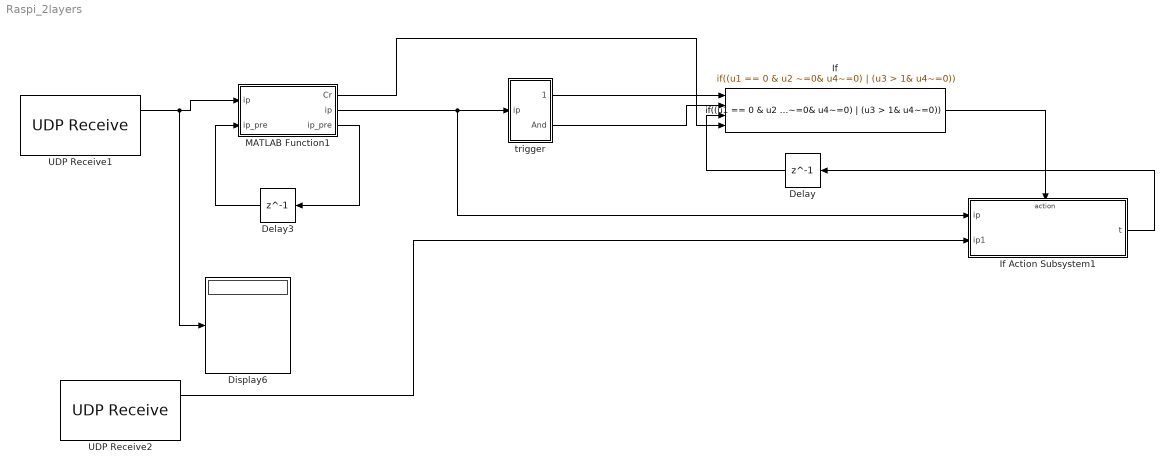
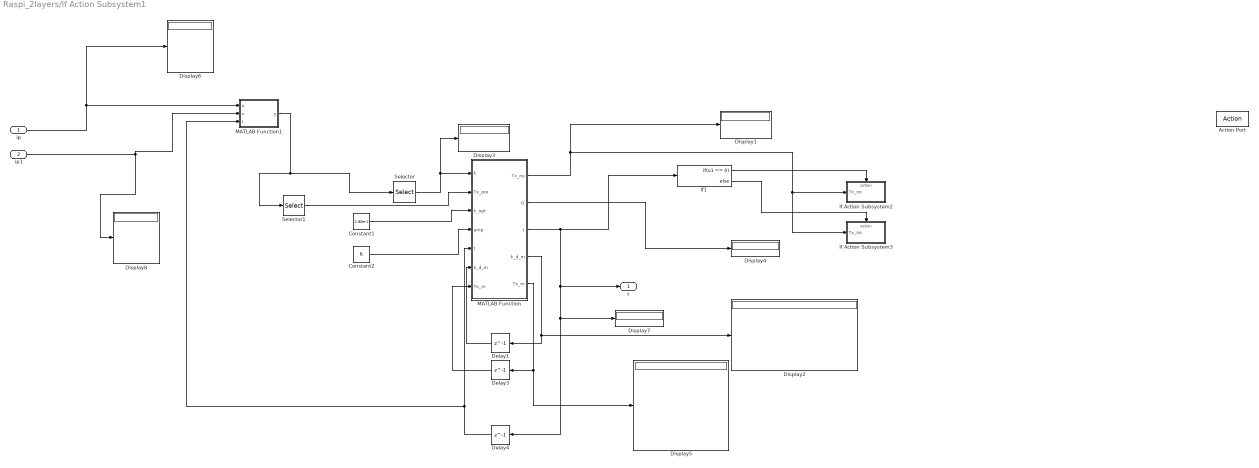
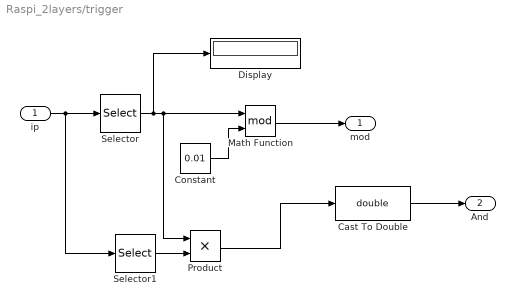
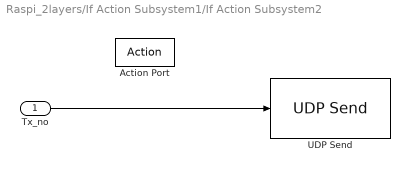
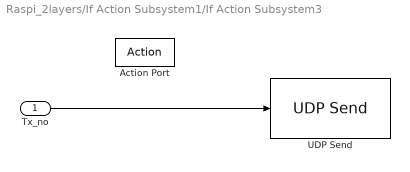
== matlab function Raspi_2layers/MATLAB Function1 ==
function [Cr,ip, ip_pre] = fcn(ip, ip_pre)

ip2 = ip(2);

if ip2 == ip_pre
    Cr = 0;
else
    ip_pre = ip2;
    Cr = 1;

end

== matlab function Raspi_2layers/If Action
Subsystem1/MATLAB Function1 ==
function y = IpSelector(u,v,t)
if t<=2
    y = u;
else
    y = v;
end

== matlab function Raspi_2layers/If Action
Subsystem1/MATLAB Function ==
function [Tx_no,G,t,k_d_m,Tx_m] = Controller(k,Tx_pre,k_opt,amp,t,k_d_m,Tx_m)

k_diff = abs(k_opt-k)/k_opt;
Tx_pre = Tx_pre';

if t == 0
   

    t = t+1;
    k_d_m(1,:)  = [k_diff,Tx_pre];
    k_d_m(2,:)  = [k_diff,Tx_pre];

    
else

    if k_diff < k_d_m(2,1)

       k_d_m(2,:)  = [k_diff,Tx_pre];

    end

end

G = round(amp*k_d_m(1,1));  
Tx_fix = k_d_m(1,2:3)';

if G >1
    G =1;
    disp("Gain exceed!!!")
end

if t < 10
    
    if t < 9

        if G ==0
            Tx_no = [0;0];
        else

            dir_att = [-1,-1; -1,0; 0,-1; 1,1; 1,0; 0,1; 1,-1; -1,1];
            
            
            Tx_no =G*dir_att(t,:)'+Tx_fix;
        
            Tx_m (t,:) = Tx_no;
        end

    else

         Tx_no = [0;0]; % off

    end

    t =t+1;

else
    
    
    Tx_no = k_d_m(2,2:3)';

    t =0;
   
 
end

/*
 * Academic License - for use in teaching, academic research, and meeting
 * course requirements at degree granting institutions only.  Not for
 * government, commercial, or other organizational use.
 *
 * File: Raspi_2layers.c
 *
 * Code generated for Simulink model 'Raspi_2layers'.
 *
 * Model version                  : 1.7
 * Simulink Coder version         : 9.6 (R2021b) 14-May-2021
 * C/C++ source code generated on : Sun May 29 01:31:49 2022
 *
 * Target selection: ert.tlc
 * Embedded hardware selection: ARM Compatible->ARM Cortex
 * Code generation objectives: Unspecified
 * Validation result: Not run
 */

#include "Raspi_2layers.h"
#include "Raspi_2layers_private.h"

/* Block signals (default storage) */
B_Raspi_2layers_T Raspi_2layers_B;

/* Block states (default storage) */
DW_Raspi_2layers_T Raspi_2layers_DW;

/* Real-time model */
static RT_MODEL_Raspi_2layers_T Raspi_2layers_M_;
RT_MODEL_Raspi_2layers_T *const Raspi_2layers_M = &Raspi_2layers_M_;

/*
 * System initialize for action system:
 *    '<S1>/If Action Subsystem2'
 *    '<S1>/If Action Subsystem3'
 */
void Raspi_2_IfActionSubsystem2_Init(RT_MODEL_Raspi_2layers_T * const
  Raspi_2layers_M, DW_IfActionSubsystem2_Raspi_2_T *localDW,
  P_IfActionSubsystem2_Raspi_2l_T *localP)
{
  char_T *sErr;

  /* Start for S-Function (sdspToNetwork): '<S4>/UDP Send' */
  sErr = GetErrorBuffer(&localDW->UDPSend_NetworkLib[0U]);
  CreateUDPInterface(&localDW->UDPSend_NetworkLib[0U]);
  if (*sErr == 0) {
    LibCreate_Network(&localDW->UDPSend_NetworkLib[0U], 1, "0.0.0.0", -1,
                      "172.20.10.2", localP->UDPSend_Port, 8192, 8, 0);
  }

  if (*sErr == 0) {
    LibStart(&localDW->UDPSend_NetworkLib[0U]);
  }

  if (*sErr != 0) {
    DestroyUDPInterface(&localDW->UDPSend_NetworkLib[0U]);
    if (*sErr != 0) {
      rtmSetErrorStatus(Raspi_2layers_M, sErr);
      rtmSetStopRequested(Raspi_2layers_M, 1);
    }
  }

  /* End of Start for S-Function (sdspToNetwork): '<S4>/UDP Send' */
}

/*
 * Output and update for action system:
 *    '<S1>/If Action Subsystem2'
 *    '<S1>/If Action Subsystem3'
 */
void Raspi_2layer_IfActionSubsystem2(RT_MODEL_Raspi_2layers_T * const
  Raspi_2layers_M, const real_T rtu_Tx_no[2], DW_IfActionSubsystem2_Raspi_2_T
  *localDW)
{
  char_T *sErr;

  /* Update for S-Function (sdspToNetwork): '<S4>/UDP Send' */
  sErr = GetErrorBuffer(&localDW->UDPSend_NetworkLib[0U]);
  LibUpdate_Network(&localDW->UDPSend_NetworkLib[0U], &rtu_Tx_no[0U], 2);
  if (*sErr != 0) {
    rtmSetErrorStatus(Raspi_2layers_M, sErr);
    rtmSetStopRequested(Raspi_2layers_M, 1);
  }

  /* End of Update for S-Function (sdspToNetwork): '<S4>/UDP Send' */
}

/*
 * Termination for action system:
 *    '<S1>/If Action Subsystem2'
 *    '<S1>/If Action Subsystem3'
 */
void Raspi_2_IfActionSubsystem2_Term(RT_MODEL_Raspi_2layers_T * const
  Raspi_2layers_M, DW_IfActionSubsystem2_Raspi_2_T *localDW)
{
  char_T *sErr;

  /* Terminate for S-Function (sdspToNetwork): '<S4>/UDP Send' */
  sErr = GetErrorBuffer(&localDW->UDPSend_NetworkLib[0U]);
  LibTerminate(&localDW->UDPSend_NetworkLib[0U]);
  if (*sErr != 0) {
    rtmSetErrorStatus(Raspi_2layers_M, sErr);
    rtmSetStopRequested(Raspi_2layers_M, 1);
  }

  LibDestroy(&localDW->UDPSend_NetworkLib[0U], 1);
  DestroyUDPInterface(&localDW->UDPSend_NetworkLib[0U]);

  /* End of Terminate for S-Function (sdspToNetwork): '<S4>/UDP Send' */
}

real_T rt_modd_snf(real_T u0, real_T u1)
{
  real_T q;
  real_T y;
  boolean_T yEq;
  y = u0;
  if (u1 == 0.0) {
    if (u0 == 0.0) {
      y = u1;
    }
  } else if (rtIsNaN(u0) || rtIsNaN(u1) || rtIsInf(u0)) {
    y = (rtNaN);
  } else if (u0 == 0.0) {
    y = 0.0 / u1;
  } else if (rtIsInf(u1)) {
    if ((u1 < 0.0) != (u0 < 0.0)) {
      y = u1;
    }
  } else {
    y = fmod(u0, u1);
    yEq = (y == 0.0);
    if ((!yEq) && (u1 > floor(u1))) {
      q = fabs(u0 / u1);
      yEq = !(fabs(q - floor(q + 0.5)) > DBL_EPSILON * q);
    }

    if (yEq) {
      y = u1 * 0.0;
    } else if ((u0 < 0.0) != (u1 < 0.0)) {
      y += u1;
    }
  }

  return y;
}

real_T rt_roundd_snf(real_T u)
{
  real_T y;
  if (fabs(u) < 4.503599627370496E+15) {
    if (u >= 0.5) {
      y = floor(u + 0.5);
    } else if (u > -0.5) {
      y = u * 0.0;
    } else {
      y = ceil(u - 0.5);
    }
  } else {
    y = u;
  }

  return y;
}

/* Model step function */
void Raspi_2layers_step(void)
{
  real_T k_diff;
  int32_T rtb_Cr;
  char_T *sErr;
  static const int8_T b[16] = { -1, -1, 0, 1, 1, 0, 1, -1, -1, 0, -1, 1, 0, 1,
    -1, 1 };

  /* Reset subsysRan breadcrumbs */
  srClearBC(Raspi_2layers_DW.IfActionSubsystem2.IfActionSubsystem2_SubsysRanBC);

  /* Reset subsysRan breadcrumbs */
  srClearBC(Raspi_2layers_DW.IfActionSubsystem1_SubsysRanBC);

  /* S-Function (sdspFromNetwork): '<Root>/UDP Receive1' */
  sErr = GetErrorBuffer(&Raspi_2layers_DW.UDPReceive1_NetworkLib[0U]);
  rtb_Cr = 4;
  LibOutputs_Network(&Raspi_2layers_DW.UDPReceive1_NetworkLib[0U],
                     &Raspi_2layers_B.UDPReceive1_o1[0U], &rtb_Cr);
  if (*sErr != 0) {
    rtmSetErrorStatus(Raspi_2layers_M, sErr);
    rtmSetStopRequested(Raspi_2layers_M, 1);
  }

  /* End of S-Function (sdspFromNetwork): '<Root>/UDP Receive1' */
  /* S-Function (sdspFromNetwork): '<Root>/UDP Receive2' */
  sErr = GetErrorBuffer(&Raspi_2layers_DW.UDPReceive2_NetworkLib[0U]);
  rtb_Cr = 4;
  LibOutputs_Network(&Raspi_2layers_DW.UDPReceive2_NetworkLib[0U],
                     &Raspi_2layers_B.UDPReceive2_o1[0U], &rtb_Cr);
  if (*sErr != 0) {
    rtmSetErrorStatus(Raspi_2layers_M, sErr);
    rtmSetStopRequested(Raspi_2layers_M, 1);
  }

  /* End of S-Function (sdspFromNetwork): '<Root>/UDP Receive2' */

  /* MATLAB Function: '<Root>/MATLAB Function1' incorporates:
   *  Delay: '<Root>/Delay3'
   *  S-Function (sdspFromNetwork): '<Root>/UDP Receive1'
   */
  Raspi_2layers_B.ip[0] = Raspi_2layers_B.UDPReceive1_o1[0];
  Raspi_2layers_B.ip[1] = Raspi_2layers_B.UDPReceive1_o1[1];
  Raspi_2layers_B.ip[2] = Raspi_2layers_B.UDPReceive1_o1[2];
  Raspi_2layers_B.ip[3] = Raspi_2layers_B.UDPReceive1_o1[3];
  if (Raspi_2layers_B.ip[1] == Raspi_2layers_DW.Delay3_DSTATE) {
    rtb_Cr = 0;
  } else {
    Raspi_2layers_DW.Delay3_DSTATE = Raspi_2layers_B.ip[1];
    rtb_Cr = 1;
  }

  /* End of MATLAB Function: '<Root>/MATLAB Function1' */

  /* If: '<Root>/If' incorporates:
   *  Constant: '<S3>/Constant'
   *  Delay: '<Root>/Delay'
   *  Math: '<S3>/Math Function'
   *  Product: '<S3>/Product'
   */
  if (((rt_modd_snf(Raspi_2layers_B.ip[1], Raspi_2layers_P.Constant_Value) ==
        0.0) && (Raspi_2layers_B.ip[0] * Raspi_2layers_B.ip[1] != 0.0) &&
       (rtb_Cr != 0)) || ((Raspi_2layers_DW.Delay_DSTATE > 1.0) && (rtb_Cr != 0)))
  {
    /* Outputs for IfAction SubSystem: '<Root>/If Action Subsystem1' incorporates:
     *  ActionPort: '<S1>/Action Port'
     */
    /* MATLAB Function: '<S1>/MATLAB Function1' incorporates:
     *  Delay: '<S1>/Delay4'
     *  S-Function (sdspFromNetwork): '<Root>/UDP Receive2'
     */
    if (Raspi_2layers_DW.Delay4_DSTATE <= 2.0) {
      Raspi_2layers_B.y[0] = Raspi_2layers_B.ip[0];
      Raspi_2layers_B.y[1] = Raspi_2layers_B.ip[1];
      Raspi_2layers_B.y[2] = Raspi_2layers_B.ip[2];
      Raspi_2layers_B.y[3] = Raspi_2layers_B.ip[3];
    } else {
      Raspi_2layers_B.y[0] = Raspi_2layers_B.UDPReceive2_o1[0];
      Raspi_2layers_B.y[1] = Raspi_2layers_B.UDPReceive2_o1[1];
      Raspi_2layers_B.y[2] = Raspi_2layers_B.UDPReceive2_o1[2];
      Raspi_2layers_B.y[3] = Raspi_2layers_B.UDPReceive2_o1[3];
    }

    /* End of MATLAB Function: '<S1>/MATLAB Function1' */

    /* MATLAB Function: '<S1>/MATLAB Function' incorporates:
     *  Constant: '<S1>/Constant1'
     *  Constant: '<S1>/Constant2'
     *  Delay: '<S1>/Delay1'
     *  Delay: '<S1>/Delay3'
     *  Delay: '<S1>/Delay4'
     */
    Raspi_2layers_B.t = Raspi_2layers_DW.Delay4_DSTATE;
    for (rtb_Cr = 0; rtb_Cr < 6; rtb_Cr++) {
      Raspi_2layers_B.k_d_m[rtb_Cr] = Raspi_2layers_DW.Delay1_DSTATE[rtb_Cr];
    }

    memcpy(&Raspi_2layers_B.Tx_m[0], &Raspi_2layers_DW.Delay3_DSTATE_o[0],
           sizeof(real_T) << 4U);
    k_diff = fabs(Raspi_2layers_P.Constant1_Value - Raspi_2layers_B.y[0]) /
      Raspi_2layers_P.Constant1_Value;
    if (Raspi_2layers_B.t == 0.0) {
      Raspi_2layers_B.t++;
      Raspi_2layers_B.k_d_m[0] = k_diff;
      Raspi_2layers_B.k_d_m[1] = k_diff;
      Raspi_2layers_B.k_d_m[2] = Raspi_2layers_B.y[2];
      Raspi_2layers_B.k_d_m[3] = Raspi_2layers_B.y[2];
      Raspi_2layers_B.k_d_m[4] = Raspi_2layers_B.y[3];
      Raspi_2layers_B.k_d_m[5] = Raspi_2layers_B.y[3];
    } else if (k_diff < Raspi_2layers_B.k_d_m[1]) {
      Raspi_2layers_B.k_d_m[1] = k_diff;
      Raspi_2layers_B.k_d_m[3] = Raspi_2layers_B.y[2];
      Raspi_2layers_B.k_d_m[5] = Raspi_2layers_B.y[3];
    }

    Raspi_2layers_B.G = rt_roundd_snf(Raspi_2layers_P.Constant2_Value *
      Raspi_2layers_B.k_d_m[0]);
    if (Raspi_2layers_B.G > 1.0) {
      Raspi_2layers_B.G = 1.0;
      printf("%s\n", "Gain exceed!!!");
      fflush(stdout);
    }

    if (Raspi_2layers_B.t < 10.0) {
      if (Raspi_2layers_B.t < 9.0) {
        if (Raspi_2layers_B.G == 0.0) {
          Raspi_2layers_B.Tx_no[0] = 0.0;
          Raspi_2layers_B.Tx_no[1] = 0.0;
        } else {
          Raspi_2layers_B.Tx_no[0] = (real_T)b[(int32_T)Raspi_2layers_B.t - 1] *
            Raspi_2layers_B.G + Raspi_2layers_B.k_d_m[2];
          Raspi_2layers_B.Tx_m[(int32_T)Raspi_2layers_B.t - 1] =
            Raspi_2layers_B.Tx_no[0];
          Raspi_2layers_B.Tx_no[1] = (real_T)b[(int32_T)Raspi_2layers_B.t + 7] *
            Raspi_2layers_B.G + Raspi_2layers_B.k_d_m[4];
          Raspi_2layers_B.Tx_m[(int32_T)Raspi_2layers_B.t + 7] =
            Raspi_2layers_B.Tx_no[1];
        }
      } else {
        Raspi_2layers_B.Tx_no[0] = 0.0;
        Raspi_2layers_B.Tx_no[1] = 0.0;
      }

      Raspi_2layers_B.t++;
    } else {
      Raspi_2layers_B.Tx_no[0] = Raspi_2layers_B.k_d_m[3];
      Raspi_2layers_B.Tx_no[1] = Raspi_2layers_B.k_d_m[5];
      Raspi_2layers_B.t = 0.0;
    }

    /* End of MATLAB Function: '<S1>/MATLAB Function' */
    /* If: '<S1>/If1' */
    if (Raspi_2layers_B.t == 0.0) {
      /* Outputs for IfAction SubSystem: '<S1>/If Action Subsystem2' incorporates:
       *  ActionPort: '<S4>/Action Port'
       */
      Raspi_2layer_IfActionSubsystem2(Raspi_2layers_M, Raspi_2layers_B.Tx_no,
        &Raspi_2layers_DW.IfActionSubsystem2);

      /* End of Outputs for SubSystem: '<S1>/If Action Subsystem2' */
    } else {
      /* Outputs for IfAction SubSystem: '<S1>/If Action Subsystem3' incorporates:
       *  ActionPort: '<S5>/Action Port'
       */
      Raspi_2layer_IfActionSubsystem2(Raspi_2layers_M, Raspi_2layers_B.Tx_no,
        &Raspi_2layers_DW.IfActionSubsystem3);

      /* End of Outputs for SubSystem: '<S1>/If Action Subsystem3' */
    }

    /* End of If: '<S1>/If1' */
    /* Update for Delay: '<S1>/Delay3' */
    memcpy(&Raspi_2layers_DW.Delay3_DSTATE_o[0], &Raspi_2layers_B.Tx_m[0],
           sizeof(real_T) << 4U);

    /* Update for Delay: '<S1>/Delay4' */
    Raspi_2layers_DW.Delay4_DSTATE = Raspi_2layers_B.t;

    /* Update for Delay: '<S1>/Delay1' */
    for (rtb_Cr = 0; rtb_Cr < 6; rtb_Cr++) {
      Raspi_2layers_DW.Delay1_DSTATE[rtb_Cr] = Raspi_2layers_B.k_d_m[rtb_Cr];
    }

    /* End of Update for Delay: '<S1>/Delay1' */
    /* End of Outputs for SubSystem: '<Root>/If Action Subsystem1' */

    /* Update for IfAction SubSystem: '<Root>/If Action Subsystem1' incorporates:
     *  ActionPort: '<S1>/Action Port'
     */
    /* Update for If: '<Root>/If' */
    srUpdateBC(Raspi_2layers_DW.IfActionSubsystem1_SubsysRanBC);

    /* End of Update for SubSystem: '<Root>/If Action Subsystem1' */
  }

  /* End of If: '<Root>/If' */
  /* Update for Delay: '<Root>/Delay' */
  Raspi_2layers_DW.Delay_DSTATE = Raspi_2layers_B.t;

  /* External mode */
  rtExtModeUploadCheckTrigger(1);

  {                                    /* Sample time: [0.001s, 0.0s] */
    rtExtModeUpload(0, (real_T)Raspi_2layers_M->Timing.taskTime0);
  }

  /* signal main to stop simulation */
  {                                    /* Sample time: [0.001s, 0.0s] */
    if ((rtmGetTFinal(Raspi_2layers_M)!=-1) &&
        !((rtmGetTFinal(Raspi_2layers_M)-Raspi_2layers_M->Timing.taskTime0) >
          Raspi_2layers_M->Timing.taskTime0 * (DBL_EPSILON))) {
      rtmSetErrorStatus(Raspi_2layers_M, "Simulation finished");
    }

    if (rtmGetStopRequested(Raspi_2layers_M)) {
      rtmSetErrorStatus(Raspi_2layers_M, "Simulation finished");
    }
  }

  /* Update absolute time for base rate */
  /* The "clockTick0" counts the number of times the code of this task has
   * been executed. The absolute time is the multiplication of "clockTick0"
   * and "Timing.stepSize0". Size of "clockTick0" ensures timer will not
   * overflow during the application lifespan selected.
   */
  Raspi_2layers_M->Timing.taskTime0 =
    ((time_T)(++Raspi_2layers_M->Timing.clockTick0)) *
    Raspi_2layers_M->Timing.stepSize0;
}
